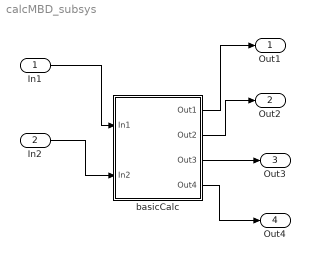
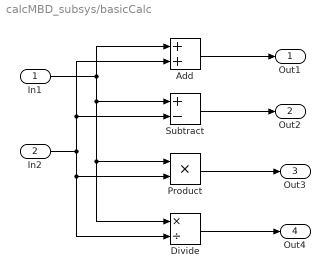
/*
 * File: calcMBD_subsys.c
 *
 * Code generated for Simulink model 'calcMBD_subsys'.
 *
 * Model version                  : 1.3
 * Simulink Coder version         : 9.0 (R2018b) 24-May-2018
 * C/C++ source code generated on : Sat Feb 26 09:25:08 2022
 *
 * Target selection: ert.tlc
 * Embedded hardware selection: Intel->x86-64 (Windows64)
 * Code generation objectives: Unspecified
 * Validation result: Not run
 */

#include "calcMBD_subsys.h"
#include "calcMBD_subsys_private.h"

/* External inputs (root inport signals with default storage) */
ExtU_calcMBD_subsys_T calcMBD_subsys_U;

/* External outputs (root outports fed by signals with default storage) */
ExtY_calcMBD_subsys_T calcMBD_subsys_Y;

/* Real-time model */
RT_MODEL_calcMBD_subsys_T calcMBD_subsys_M_;
RT_MODEL_calcMBD_subsys_T *const calcMBD_subsys_M = &calcMBD_subsys_M_;

/* Output and update for atomic system: '<Root>/basicCalc' */
void calcMBD_subsys_basicCalc(real_T rtu_In1, real_T rtu_In2, real_T *rty_Out1,
  real_T *rty_Out2, real_T *rty_Out3, real_T *rty_Out4)
{
  /* Sum: '<S1>/Add' */
  *rty_Out1 = rtu_In1 + rtu_In2;

  /* Product: '<S1>/Divide' */
  *rty_Out4 = rtu_In1 / rtu_In2;

  /* Product: '<S1>/Product' */
  *rty_Out3 = rtu_In1 * rtu_In2;

  /* Sum: '<S1>/Subtract' */
  *rty_Out2 = rtu_In1 - rtu_In2;
}

/* Model step function */
void calcMBD_subsys_step(void)
{
  /* Outputs for Atomic SubSystem: '<Root>/basicCalc' */

  /* Inport: '<Root>/In1' incorporates:
   *  Inport: '<Root>/In2'
   *  Outport: '<Root>/Out1'
   *  Outport: '<Root>/Out2'
   *  Outport: '<Root>/Out3'
   *  Outport: '<Root>/Out4'
   */
  calcMBD_subsys_basicCalc(calcMBD_subsys_U.In1, calcMBD_subsys_U.In2,
    &calcMBD_subsys_Y.Out1, &calcMBD_subsys_Y.Out2, &calcMBD_subsys_Y.Out3,
    &calcMBD_subsys_Y.Out4);

  /* End of Outputs for SubSystem: '<Root>/basicCalc' */
}
